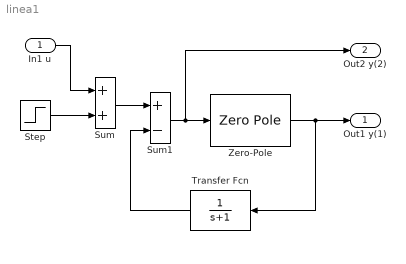
/*
 * linea1.c
 *
 * Code generation for model "linea1".
 *
 * Model version              : 1.4
 * Simulink Coder version : 8.4 (R2013a) 13-Feb-2013
 * C source code generated on : Thu Apr 24 21:14:30 2014
 *
 * Target selection: grt.tlc
 * Note: GRT includes extra infrastructure and instrumentation for prototyping
 * Embedded hardware selection: 32-bit Generic
 * Emulation hardware selection:
 *    Differs from embedded hardware (MATLAB Host)
 * Code generation objectives: Unspecified
 * Validation result: Not run
 */
#include "linea1.h"
#include "linea1_private.h"

/* Block signals (auto storage) */
B_linea1_T linea1_B;

/* Continuous states */
X_linea1_T linea1_X;

/* External inputs (root inport signals with auto storage) */
ExtU_linea1_T linea1_U;

/* External outputs (root outports fed by signals with auto storage) */
ExtY_linea1_T linea1_Y;

/* Real-time model */
RT_MODEL_linea1_T linea1_M_;
RT_MODEL_linea1_T *const linea1_M = &linea1_M_;

/*
 * This function updates continuous states using the ODE3 fixed-step
 * solver algorithm
 */
static void rt_ertODEUpdateContinuousStates(RTWSolverInfo *si )
{
  /* Solver Matrices */
  static const real_T rt_ODE3_A[3] = {
    1.0/2.0, 3.0/4.0, 1.0
  };

  static const real_T rt_ODE3_B[3][3] = {
    { 1.0/2.0, 0.0, 0.0 },

    { 0.0, 3.0/4.0, 0.0 },

    { 2.0/9.0, 1.0/3.0, 4.0/9.0 }
  };

  time_T t = rtsiGetT(si);
  time_T tnew = rtsiGetSolverStopTime(si);
  time_T h = rtsiGetStepSize(si);
  real_T *x = rtsiGetContStates(si);
  ODE3_IntgData *id = (ODE3_IntgData *)rtsiGetSolverData(si);
  real_T *y = id->y;
  real_T *f0 = id->f[0];
  real_T *f1 = id->f[1];
  real_T *f2 = id->f[2];
  real_T hB[3];
  int_T i;
  int_T nXc = 3;
  rtsiSetSimTimeStep(si,MINOR_TIME_STEP);

  /* Save the state values at time t in y, we'll use x as ynew. */
  (void) memcpy(y, x,
                (uint_T)nXc*sizeof(real_T));

  /* Assumes that rtsiSetT and ModelOutputs are up-to-date */
  /* f0 = f(t,y) */
  rtsiSetdX(si, f0);
  linea1_derivatives();

  /* f(:,2) = feval(odefile, t + hA(1), y + f*hB(:,1), args(:)(*)); */
  hB[0] = h * rt_ODE3_B[0][0];
  for (i = 0; i < nXc; i++) {
    x[i] = y[i] + (f0[i]*hB[0]);
  }

  rtsiSetT(si, t + h*rt_ODE3_A[0]);
  rtsiSetdX(si, f1);
  linea1_output();
  linea1_derivatives();

  /* f(:,3) = feval(odefile, t + hA(2), y + f*hB(:,2), args(:)(*)); */
  for (i = 0; i <= 1; i++) {
    hB[i] = h * rt_ODE3_B[1][i];
  }

  for (i = 0; i < nXc; i++) {
    x[i] = y[i] + (f0[i]*hB[0] + f1[i]*hB[1]);
  }

  rtsiSetT(si, t + h*rt_ODE3_A[1]);
  rtsiSetdX(si, f2);
  linea1_output();
  linea1_derivatives();

  /* tnew = t + hA(3);
     ynew = y + f*hB(:,3); */
  for (i = 0; i <= 2; i++) {
    hB[i] = h * rt_ODE3_B[2][i];
  }

  for (i = 0; i < nXc; i++) {
    x[i] = y[i] + (f0[i]*hB[0] + f1[i]*hB[1] + f2[i]*hB[2]);
  }

  rtsiSetT(si, tnew);
  rtsiSetSimTimeStep(si,MAJOR_TIME_STEP);
}

/* Model output function */
void linea1_output(void)
{
  /* local block i/o variables */
  real_T rtb_TransferFcn;
  real_T rtb_Sum;
  if (rtmIsMajorTimeStep(linea1_M)) {
    /* set solver stop time */
    if (!(linea1_M->Timing.clockTick0+1)) {
      rtsiSetSolverStopTime(&linea1_M->solverInfo,
                            ((linea1_M->Timing.clockTickH0 + 1) *
        linea1_M->Timing.stepSize0 * 4294967296.0));
    } else {
      rtsiSetSolverStopTime(&linea1_M->solverInfo, ((linea1_M->Timing.clockTick0
        + 1) * linea1_M->Timing.stepSize0 + linea1_M->Timing.clockTickH0 *
        linea1_M->Timing.stepSize0 * 4294967296.0));
    }
  }                                    /* end MajorTimeStep */

  /* Update absolute time of base rate at minor time step */
  if (rtmIsMinorTimeStep(linea1_M)) {
    linea1_M->Timing.t[0] = rtsiGetT(&linea1_M->solverInfo);
  }

  /* ZeroPole: '<Root>/Zero-Pole' */
  {
    linea1_B.ZeroPole = linea1_P.ZeroPole_C[0]*linea1_X.ZeroPole_CSTATE[0] +
      linea1_P.ZeroPole_C[1]*linea1_X.ZeroPole_CSTATE[1];
  }

  /* Outport: '<Root>/Out1 y(1)' */
  linea1_Y.Out1y1 = linea1_B.ZeroPole;

  /* Step: '<Root>/Step' */
  if (linea1_M->Timing.t[0] < linea1_P.Step_Time) {
    rtb_TransferFcn = linea1_P.Step_Y0;
  } else {
    rtb_TransferFcn = linea1_P.Step_YFinal;
  }

  /* End of Step: '<Root>/Step' */

  /* Sum: '<Root>/Sum' incorporates:
   *  Inport: '<Root>/In1 u'
   */
  rtb_Sum = linea1_U.In1u + rtb_TransferFcn;

  /* TransferFcn: '<Root>/Transfer Fcn' */
  rtb_TransferFcn = linea1_P.TransferFcn_C*linea1_X.TransferFcn_CSTATE;

  /* Sum: '<Root>/Sum1' */
  linea1_B.Sum1 = rtb_Sum - rtb_TransferFcn;

  /* Outport: '<Root>/Out2 y(2)' */
  linea1_Y.Out2y2 = linea1_B.Sum1;
}

/* Model update function */
void linea1_update(void)
{
  if (rtmIsMajorTimeStep(linea1_M)) {
    rt_ertODEUpdateContinuousStates(&linea1_M->solverInfo);
  }

  /* Update absolute time for base rate */
  /* The "clockTick0" counts the number of times the code of this task has
   * been executed. The absolute time is the multiplication of "clockTick0"
   * and "Timing.stepSize0". Size of "clockTick0" ensures timer will not
   * overflow during the application lifespan selected.
   * Timer of this task consists of two 32 bit unsigned integers.
   * The two integers represent the low bits Timing.clockTick0 and the high bits
   * Timing.clockTickH0. When the low bit overflows to 0, the high bits increment.
   */
  if (!(++linea1_M->Timing.clockTick0)) {
    ++linea1_M->Timing.clockTickH0;
  }

  linea1_M->Timing.t[0] = rtsiGetSolverStopTime(&linea1_M->solverInfo);
}
